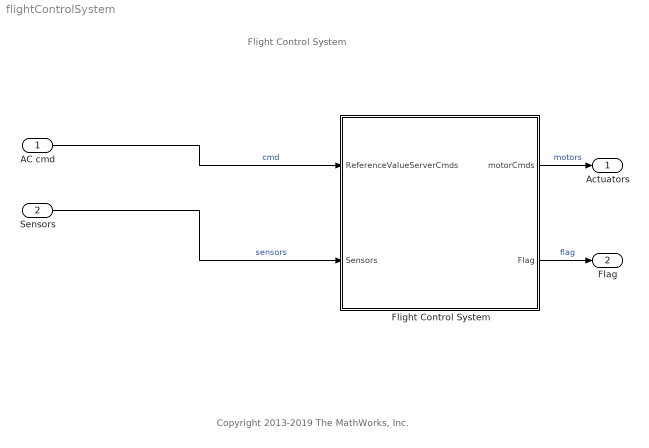
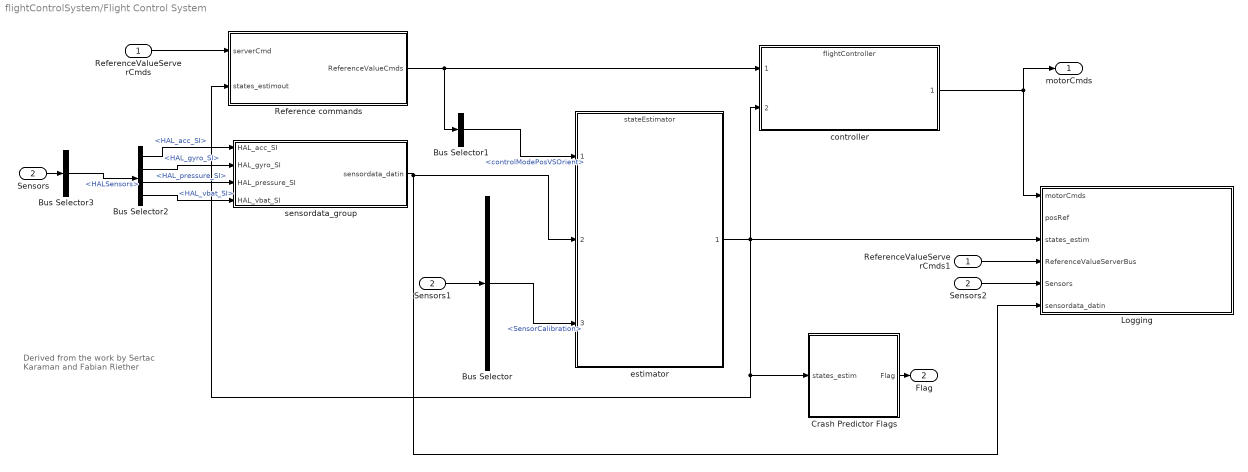
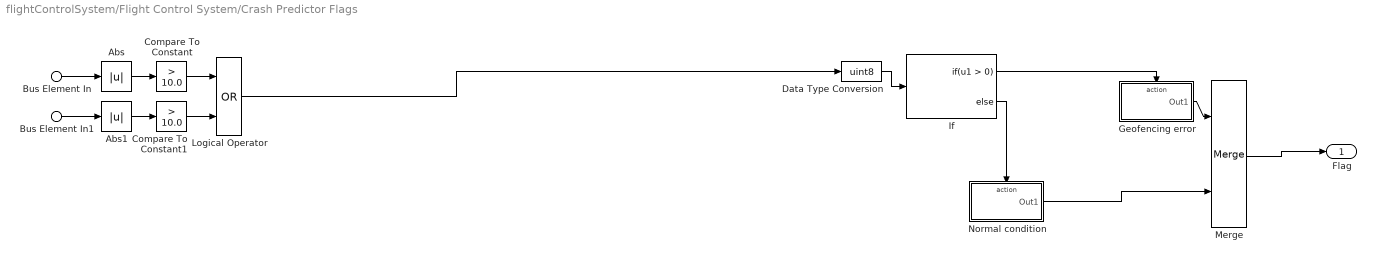
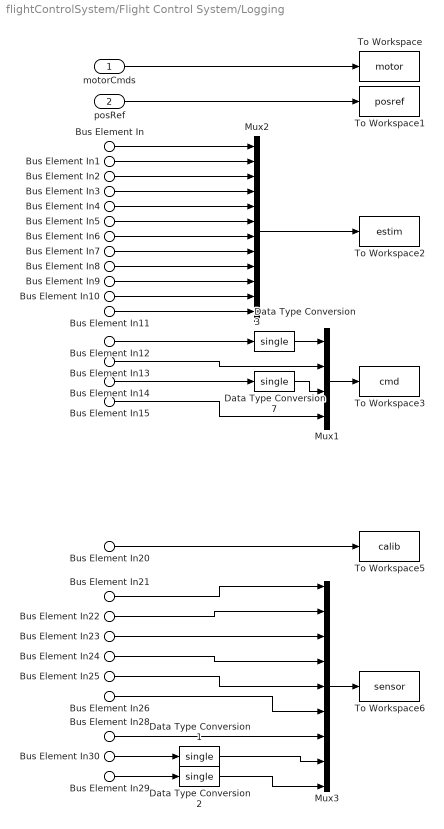
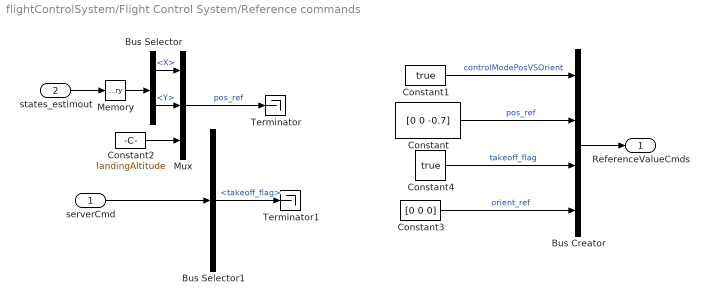
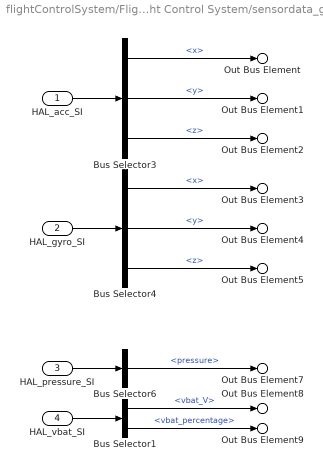
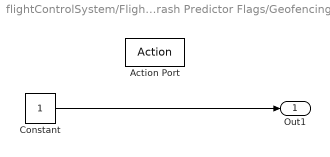
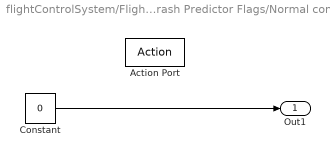
/*
 * flightControlSystem.c
 *
 * Academic License - for use in teaching, academic research, and meeting
 * course requirements at degree granting institutions only.  Not for
 * government, commercial, or other organizational use.
 *
 * Code generation for model "flightControlSystem".
 *
 * Model version              : 4.8
 * Simulink Coder version : 9.5 (R2021a) 14-Nov-2020
 * C source code generated on : Thu Jul  7 17:18:09 2022
 *
 * Target selection: grt.tlc
 * Note: GRT includes extra infrastructure and instrumentation for prototyping
 * Embedded hardware selection: ARM Compatible->ARM 9
 * Code generation objectives: Unspecified
 * Validation result: Not run
 */

#include "flightControlSystem.h"
#include "flightControlSystem_private.h"

const statesEstim_t flightControlSystem_rtZstatesEstim_t = {
  0.0F,                                /* X */
  0.0F,                                /* Y */
  0.0F,                                /* Z */
  0.0F,                                /* yaw */
  0.0F,                                /* pitch */
  0.0F,                                /* roll */
  0.0F,                                /* dx */
  0.0F,                                /* dy */
  0.0F,                                /* dz */
  0.0F,                                /* p */
  0.0F,                                /* q */
  0.0F                                 /* r */
} ;                                    /* statesEstim_t ground */

/* Exported block signals */
CommandBus cmd_inport;                 /* '<Root>/AC cmd' */
SensorsBus sensor_inport;              /* '<Root>/Sensors' */
real32_T motors_outport[4];            /* '<S1>/controller' */
uint8_T flag_outport;                  /* '<S2>/Merge' */

/* Block states (default storage) */
DW_flightControlSystem_T flightControlSystem_DW;

/* External outputs (root outports fed by signals with default storage) */
ExtY_flightControlSystem_T flightControlSystem_Y;

/* Real-time model */
static RT_MODEL_flightControlSystem_T flightControlSystem_M_;
RT_MODEL_flightControlSystem_T *const flightControlSystem_M =
  &flightControlSystem_M_;

/* System initialize for atomic system: '<S1>/Logging' */
void flightControlSystem_Logging_Init(RT_MODEL_flightControlSystem_T * const
  flightControlSystem_M, DW_Logging_flightControlSystem_T *localDW)
{
  /* SetupRuntimeResources for ToWorkspace: '<S3>/To Workspace1' */
  {
    static int_T rt_ToWksWidths[] = { 1 };

    static int_T rt_ToWksNumDimensions[] = { 1 };

    static int_T rt_ToWksDimensions[] = { 1 };

    static boolean_T rt_ToWksIsVarDims[] = { 0 };

    static void *rt_ToWksCurrSigDims[] = { (NULL) };

    static int_T rt_ToWksCurrSigDimsSize[] = { 4 };

    static BuiltInDTypeId rt_ToWksDataTypeIds[] = { SS_DOUBLE };

    static int_T rt_ToWksComplexSignals[] = { 0 };

    static int_T rt_ToWksFrameData[] = { 0 };

    static RTWPreprocessingFcnPtr rt_ToWksLoggingPreprocessingFcnPtrs[] = {
      (NULL)
    };

    static const char_T *rt_ToWksLabels[] = { "" };

    static RTWLogSignalInfo rt_ToWksSignalInfo = {
      1,
      rt_ToWksWidths,
      rt_ToWksNumDimensions,
      rt_ToWksDimensions,
      rt_ToWksIsVarDims,
      rt_ToWksCurrSigDims,
      rt_ToWksCurrSigDimsSize,
      rt_ToWksDataTypeIds,
      rt_ToWksComplexSignals,
      rt_ToWksFrameData,
      rt_ToWksLoggingPreprocessingFcnPtrs,

      { rt_ToWksLabels },
      (NULL),
      (NULL),
      (NULL),

      { (NULL) },

      { (NULL) },
      (NULL),
      (NULL)
    };

    static const char_T rt_ToWksBlockName[] =
      "flightControlSystem/Flight Control System/Logging/To Workspace1";
    localDW->ToWorkspace1_PWORK.LoggedData = rt_CreateStructLogVar(
      flightControlSystem_M->rtwLogInfo,
      0.0,
      rtmGetTFinal(flightControlSystem_M),
      flightControlSystem_M->Timing.stepSize0,
      (&rtmGetErrorStatus(flightControlSystem_M)),
      "posref",
      1,
      0,
      1,
      -2.0,
      &rt_ToWksSignalInfo,
      rt_ToWksBlockName);
    if (localDW->ToWorkspace1_PWORK.LoggedData == (NULL))
      return;
  }

  /* SetupRuntimeResources for ToWorkspace: '<S3>/To Workspace' */
  {
    static int_T rt_ToWksWidths[] = { 4 };

    static int_T rt_ToWksNumDimensions[] = { 1 };

    static int_T rt_ToWksDimensions[] = { 4 };

    static boolean_T rt_ToWksIsVarDims[] = { 0 };

    static void *rt_ToWksCurrSigDims[] = { (NULL) };

    static int_T rt_ToWksCurrSigDimsSize[] = { 4 };

    static BuiltInDTypeId rt_ToWksDataTypeIds[] = { SS_SINGLE };

    static int_T rt_ToWksComplexSignals[] = { 0 };

    static int_T rt_ToWksFrameData[] = { 0 };

    static RTWPreprocessingFcnPtr rt_ToWksLoggingPreprocessingFcnPtrs[] = {
      (NULL)
    };

    static const char_T *rt_ToWksLabels[] = { "" };

    static RTWLogSignalInfo rt_ToWksSignalInfo = {
      1,
      rt_ToWksWidths,
      rt_ToWksNumDimensions,
      rt_ToWksDimensions,
      rt_ToWksIsVarDims,
      rt_ToWksCurrSigDims,
      rt_ToWksCurrSigDimsSize,
      rt_ToWksDataTypeIds,
      rt_ToWksComplexSignals,
      rt_ToWksFrameData,
      rt_ToWksLoggingPreprocessingFcnPtrs,

      { rt_ToWksLabels },
      (NULL),
      (NULL),
      (NULL),

      { (NULL) },

      { (NULL) },
      (NULL),
      (NULL)
    };

    static const char_T rt_ToWksBlockName[] =
      "flightControlSystem/Flight Control System/Logging/To Workspace";
    localDW->ToWorkspace_PWORK.LoggedData = rt_CreateStructLogVar(
      flightControlSystem_M->rtwLogInfo,
      0.0,
      rtmGetTFinal(flightControlSystem_M),
      flightControlSystem_M->Timing.stepSize0,
      (&rtmGetErrorStatus(flightControlSystem_M)),
      "motor",
      1,
      0,
      1,
      0.005,
      &rt_ToWksSignalInfo,
      rt_ToWksBlockName);
    if (localDW->ToWorkspace_PWORK.LoggedData == (NULL))
      return;
  }

  /* SetupRuntimeResources for ToWorkspace: '<S3>/To Workspace2' */
  {
    static int_T rt_ToWksWidths[] = { 12 };

    static int_T rt_ToWksNumDimensions[] = { 1 };

    static int_T rt_ToWksDimensions[] = { 12 };

    static boolean_T rt_ToWksIsVarDims[] = { 0 };

    static void *rt_ToWksCurrSigDims[] = { (NULL) };

    static int_T rt_ToWksCurrSigDimsSize[] = { 4 };

    static BuiltInDTypeId rt_ToWksDataTypeIds[] = { SS_SINGLE };

    static int_T rt_ToWksComplexSignals[] = { 0 };

    static int_T rt_ToWksFrameData[] = { 0 };

    static RTWPreprocessingFcnPtr rt_ToWksLoggingPreprocessingFcnPtrs[] = {
      (NULL)
    };

    static const char_T *rt_ToWksLabels[] = { "" };

    static RTWLogSignalInfo rt_ToWksSignalInfo = {
      1,
      rt_ToWksWidths,
      rt_ToWksNumDimensions,
      rt_ToWksDimensions,
      rt_ToWksIsVarDims,
      rt_ToWksCurrSigDims,
      rt_ToWksCurrSigDimsSize,
      rt_ToWksDataTypeIds,
      rt_ToWksComplexSignals,
      rt_ToWksFrameData,
      rt_ToWksLoggingPreprocessingFcnPtrs,

      { rt_ToWksLabels },
      (NULL),
      (NULL),
      (NULL),

      { (NULL) },

      { (NULL) },
      (NULL),
      (NULL)
    };

    static const char_T rt_ToWksBlockName[] =
      "flightControlSystem/Flight Control System/Logging/To Workspace2";
    localDW->ToWorkspace2_PWORK.LoggedData = rt_CreateStructLogVar(
      flightControlSystem_M->rtwLogInfo,
      0.0,
      rtmGetTFinal(flightControlSystem_M),
      flightControlSystem_M->Timing.stepSize0,
      (&rtmGetErrorStatus(flightControlSystem_M)),
      "estim",
      1,
      0,
      1,
      0.005,
      &rt_ToWksSignalInfo,
      rt_ToWksBlockName);
    if (localDW->ToWorkspace2_PWORK.LoggedData == (NULL))
      return;
  }

  /* SetupRuntimeResources for ToWorkspace: '<S3>/To Workspace3' */
  {
    static int_T rt_ToWksWidths[] = { 8 };

    static int_T rt_ToWksNumDimensions[] = { 1 };

    static int_T rt_ToWksDimensions[] = { 8 };

    static boolean_T rt_ToWksIsVarDims[] = { 0 };

    static void *rt_ToWksCurrSigDims[] = { (NULL) };

    static int_T rt_ToWksCurrSigDimsSize[] = { 4 };

    static BuiltInDTypeId rt_ToWksDataTypeIds[] = { SS_SINGLE };

    static int_T rt_ToWksComplexSignals[] = { 0 };

    static int_T rt_ToWksFrameData[] = { 0 };

    static RTWPreprocessingFcnPtr rt_ToWksLoggingPreprocessingFcnPtrs[] = {
      (NULL)
    };

    static const char_T *rt_ToWksLabels[] = { "" };

    static RTWLogSignalInfo rt_ToWksSignalInfo = {
      1,
      rt_ToWksWidths,
      rt_ToWksNumDimensions,
      rt_ToWksDimensions,
      rt_ToWksIsVarDims,
      rt_ToWksCurrSigDims,
      rt_ToWksCurrSigDimsSize,
      rt_ToWksDataTypeIds,
      rt_ToWksComplexSignals,
      rt_ToWksFrameData,
      rt_ToWksLoggingPreprocessingFcnPtrs,

      { rt_ToWksLabels },
      (NULL),
      (NULL),
      (NULL),

      { (NULL) },

      { (NULL) },
      (NULL),
      (NULL)
    };

    static const char_T rt_ToWksBlockName[] =
      "flightControlSystem/Flight Control System/Logging/To Workspace3";
    localDW->ToWorkspace3_PWORK.LoggedData = rt_CreateStructLogVar(
      flightControlSystem_M->rtwLogInfo,
      0.0,
      rtmGetTFinal(flightControlSystem_M),
      flightControlSystem_M->Timing.stepSize0,
      (&rtmGetErrorStatus(flightControlSystem_M)),
      "cmd",
      1,
      0,
      1,
      0.005,
      &rt_ToWksSignalInfo,
      rt_ToWksBlockName);
    if (localDW->ToWorkspace3_PWORK.LoggedData == (NULL))
      return;
  }

  /* SetupRuntimeResources for ToWorkspace: '<S3>/To Workspace5' */
  {
    static int_T rt_ToWksWidths[] = { 8 };

    static int_T rt_ToWksNumDimensions[] = { 1 };

    static int_T rt_ToWksDimensions[] = { 8 };

    static boolean_T rt_ToWksIsVarDims[] = { 0 };

    static void *rt_ToWksCurrSigDims[] = { (NULL) };

    static int_T rt_ToWksCurrSigDimsSize[] = { 4 };

    static BuiltInDTypeId rt_ToWksDataTypeIds[] = { SS_SINGLE };

    static int_T rt_ToWksComplexSignals[] = { 0 };

    static int_T rt_ToWksFrameData[] = { 0 };

    static RTWPreprocessingFcnPtr rt_ToWksLoggingPreprocessingFcnPtrs[] = {
      (NULL)
    };

    static const char_T *rt_ToWksLabels[] = { "SensorCalibration" };

    static RTWLogSignalInfo rt_ToWksSignalInfo = {
      1,
      rt_ToWksWidths,
      rt_ToWksNumDimensions,
      rt_ToWksDimensions,
      rt_ToWksIsVarDims,
      rt_ToWksCurrSigDims,
      rt_ToWksCurrSigDimsSize,
      rt_ToWksDataTypeIds,
      rt_ToWksComplexSignals,
      rt_ToWksFrameData,
      rt_ToWksLoggingPreprocessingFcnPtrs,

      { rt_ToWksLabels },
      (NULL),
      (NULL),
      (NULL),

      { (NULL) },

      { (NULL) },
      (NULL),
      (NULL)
    };

    static const char_T rt_ToWksBlockName[] =
      "flightControlSystem/Flight Control System/Logging/To Workspace5";
    localDW->ToWorkspace5_PWORK.LoggedData = rt_CreateStructLogVar(
      flightControlSystem_M->rtwLogInfo,
      0.0,
      rtmGetTFinal(flightControlSystem_M),
      flightControlSystem_M->Timing.stepSize0,
      (&rtmGetErrorStatus(flightControlSystem_M)),
      "calib",
      1,
      0,
      100,
      0.005,
      &rt_ToWksSignalInfo,
      rt_ToWksBlockName);
    if (localDW->ToWorkspace5_PWORK.LoggedData == (NULL))
      return;
  }

  /* SetupRuntimeResources for ToWorkspace: '<S3>/To Workspace6' */
  {
    static int_T rt_ToWksWidths[] = { 9 };

    static int_T rt_ToWksNumDimensions[] = { 1 };

    static int_T rt_ToWksDimensions[] = { 9 };

    static boolean_T rt_ToWksIsVarDims[] = { 0 };

    static void *rt_ToWksCurrSigDims[] = { (NULL) };

    static int_T rt_ToWksCurrSigDimsSize[] = { 4 };

    static BuiltInDTypeId rt_ToWksDataTypeIds[] = { SS_SINGLE };

    static int_T rt_ToWksComplexSignals[] = { 0 };

    static int_T rt_ToWksFrameData[] = { 0 };

    static RTWPreprocessingFcnPtr rt_ToWksLoggingPreprocessingFcnPtrs[] = {
      (NULL)
    };

    static const char_T *rt_ToWksLabels[] = { "" };

    static RTWLogSignalInfo rt_ToWksSignalInfo = {
      1,
      rt_ToWksWidths,
      rt_ToWksNumDimensions,
      rt_ToWksDimensions,
      rt_ToWksIsVarDims,
      rt_ToWksCurrSigDims,
      rt_ToWksCurrSigDimsSize,
      rt_ToWksDataTypeIds,
      rt_ToWksComplexSignals,
      rt_ToWksFrameData,
      rt_ToWksLoggingPreprocessingFcnPtrs,

      { rt_ToWksLabels },
      (NULL),
      (NULL),
      (NULL),

      { (NULL) },

      { (NULL) },
      (NULL),
      (NULL)
    };

    static const char_T rt_ToWksBlockName[] =
      "flightControlSystem/Flight Control System/Logging/To Workspace6";
    localDW->ToWorkspace6_PWORK.LoggedData = rt_CreateStructLogVar(
      flightControlSystem_M->rtwLogInfo,
      0.0,
      rtmGetTFinal(flightControlSystem_M),
      flightControlSystem_M->Timing.stepSize0,
      (&rtmGetErrorStatus(flightControlSystem_M)),
      "sensor",
      1,
      0,
      1,
      0.005,
      &rt_ToWksSignalInfo,
      rt_ToWksBlockName);
    if (localDW->ToWorkspace6_PWORK.LoggedData == (NULL))
      return;
  }
}

/* Output and update for atomic system: '<S1>/Logging' */
void flightControlSystem_Logging(RT_MODEL_flightControlSystem_T * const
  flightControlSystem_M, const real32_T rtu_motorCmds[4], const statesEstim_t
  *rtu_states_estim_Inport_3, const CommandBus
  *rtu_ReferenceValueServerBus_Inport_4, const SensorsBus *rtu_Sensors_Inport_5,
  real32_T rtu_sensordata_datin_Inport_6, uint32_T
  rtu_sensordata_datin_Inport_6_d, real32_T rtu_sensordata_datin_Inport_6_e,
  real32_T rtu_sensordata_datin_Inport_6_c, real32_T
  rtu_sensordata_datin_Inport_6_cg, real32_T rtu_sensordata_datin_Inport_6_i,
  real32_T rtu_sensordata_datin_Inport_6_h, real32_T
  rtu_sensordata_datin_Inport_6_b, real32_T rtu_sensordata_datin_Inport_6_dz,
  DW_Logging_flightControlSystem_T *localDW)
{
  /* local block i/o variables */
  real32_T rtb_DataTypeConversion1;
  real32_T rtb_DataTypeConversion2;
  int32_T i;
  real32_T rtb_TmpSignalConversionAtToWorkspace2Inport1[12];
  real32_T rtb_TmpSignalConversionAtToWorkspace6Inport1[9];
  real32_T rtb_SensorCalibration[8];
  real32_T rtb_TmpSignalConversionAtToWorkspace3Inport1[8];

  /* ToWorkspace: '<S3>/To Workspace' */
  {
    double locTime = flightControlSystem_M->Timing.taskTime0;
    ;
    rt_UpdateStructLogVar((StructLogVar *)localDW->ToWorkspace_PWORK.LoggedData,
                          &locTime, &rtu_motorCmds[0]);
  }

  /* SignalConversion generated from: '<S3>/To Workspace2' incorporates:
   *  SignalConversion generated from: '<S3>/states_estim_BusSelector'
   */
  rtb_TmpSignalConversionAtToWorkspace2Inport1[0] = rtu_states_estim_Inport_3->X;
  rtb_TmpSignalConversionAtToWorkspace2Inport1[1] = rtu_states_estim_Inport_3->Y;
  rtb_TmpSignalConversionAtToWorkspace2Inport1[2] = rtu_states_estim_Inport_3->Z;
  rtb_TmpSignalConversionAtToWorkspace2Inport1[3] =
    rtu_states_estim_Inport_3->yaw;
  rtb_TmpSignalConversionAtToWorkspace2Inport1[4] =
    rtu_states_estim_Inport_3->pitch;
  rtb_TmpSignalConversionAtToWorkspace2Inport1[5] =
    rtu_states_estim_Inport_3->roll;
  rtb_TmpSignalConversionAtToWorkspace2Inport1[6] =
    rtu_states_estim_Inport_3->dx;
  rtb_TmpSignalConversionAtToWorkspace2Inport1[7] =
    rtu_states_estim_Inport_3->dy;
  rtb_TmpSignalConversionAtToWorkspace2Inport1[8] =
    rtu_states_estim_Inport_3->dz;
  rtb_TmpSignalConversionAtToWorkspace2Inport1[9] = rtu_states_estim_Inport_3->p;
  rtb_TmpSignalConversionAtToWorkspace2Inport1[10] =
    rtu_states_estim_Inport_3->q;
  rtb_TmpSignalConversionAtToWorkspace2Inport1[11] =
    rtu_states_estim_Inport_3->r;

  /* ToWorkspace: '<S3>/To Workspace2' */
  {
    double locTime = flightControlSystem_M->Timing.taskTime0;
    ;
    rt_UpdateStructLogVar((StructLogVar *)localDW->ToWorkspace2_PWORK.LoggedData,
                          &locTime,
                          &rtb_TmpSignalConversionAtToWorkspace2Inport1[0]);
  }

  /* SignalConversion generated from: '<S3>/To Workspace3' incorporates:
   *  DataTypeConversion: '<S3>/Data Type Conversion3'
   *  DataTypeConversion: '<S3>/Data Type Conversion7'
   *  SignalConversion generated from: '<S3>/ReferenceValueServerBus_BusSelector'
   */
  rtb_TmpSignalConversionAtToWorkspace3Inport1[0] =
    rtu_ReferenceValueServerBus_Inport_4->controlModePosVSOrient;
  rtb_TmpSignalConversionAtToWorkspace3Inport1[4] =
    rtu_ReferenceValueServerBus_Inport_4->takeoff_flag;
  rtb_TmpSignalConversionAtToWorkspace3Inport1[1] =
    rtu_ReferenceValueServerBus_Inport_4->pos_ref[0];
  rtb_TmpSignalConversionAtToWorkspace3Inport1[5] =
    rtu_ReferenceValueServerBus_Inport_4->orient_ref[0];
  rtb_TmpSignalConversionAtToWorkspace3Inport1[2] =
    rtu_ReferenceValueServerBus_Inport_4->pos_ref[1];
  rtb_TmpSignalConversionAtToWorkspace3Inport1[6] =
    rtu_ReferenceValueServerBus_Inport_4->orient_ref[1];
  rtb_TmpSignalConversionAtToWorkspace3Inport1[3] =
    rtu_ReferenceValueServerBus_Inport_4->pos_ref[2];
  rtb_TmpSignalConversionAtToWorkspace3Inport1[7] =
    rtu_ReferenceValueServerBus_Inport_4->orient_ref[2];

  /* ToWorkspace: '<S3>/To Workspace3' */
  {
    double locTime = flightControlSystem_M->Timing.taskTime0;
    ;
    rt_UpdateStructLogVar((StructLogVar *)localDW->ToWorkspace3_PWORK.LoggedData,
                          &locTime,
                          &rtb_TmpSignalConversionAtToWorkspace3Inport1[0]);
  }

  /* SignalConversion generated from: '<S3>/Sensors_BusSelector' */
  for (i = 0; i < 8; i++) {
    rtb_SensorCalibration[i] = rtu_Sensors_Inport_5->SensorCalibration[i];
  }

  /* End of SignalConversion generated from: '<S3>/Sensors_BusSelector' */

  /* ToWorkspace: '<S3>/To Workspace5' */
  {
    double locTime = flightControlSystem_M->Timing.taskTime0;
    ;
    rt_UpdateStructLogVar((StructLogVar *)localDW->ToWorkspace5_PWORK.LoggedData,
                          &locTime, &rtb_SensorCalibration[0]);
  }

  /* DataTypeConversion: '<S3>/Data Type Conversion1' */
  rtb_DataTypeConversion1 = rtu_sensordata_datin_Inport_6;

  /* DataTypeConversion: '<S3>/Data Type Conversion2' */
  rtb_DataTypeConversion2 = (real32_T)rtu_sensordata_datin_Inport_6_d;

  /* SignalConversion generated from: '<S3>/To Workspace6' */
  rtb_TmpSignalConversionAtToWorkspace6Inport1[0] =
    rtu_sensordata_datin_Inport_6_e;
  rtb_TmpSignalConversionAtToWorkspace6Inport1[1] =
    rtu_sensordata_datin_Inport_6_c;
  rtb_TmpSignalConversionAtToWorkspace6Inport1[2] =
    rtu_sensordata_datin_Inport_6_cg;
  rtb_TmpSignalConversionAtToWorkspace6Inport1[3] =
    rtu_sensordata_datin_Inport_6_i;
  rtb_TmpSignalConversionAtToWorkspace6Inport1[4] =
    rtu_sensordata_datin_Inport_6_h;
  rtb_TmpSignalConversionAtToWorkspace6Inport1[5] =
    rtu_sensordata_datin_Inport_6_b;
  rtb_TmpSignalConversionAtToWorkspace6Inport1[6] =
    rtu_sensordata_datin_Inport_6_dz;
  rtb_TmpSignalConversionAtToWorkspace6Inport1[7] = rtb_DataTypeConversion1;
  rtb_TmpSignalConversionAtToWorkspace6Inport1[8] = rtb_DataTypeConversion2;

  /* ToWorkspace: '<S3>/To Workspace6' */
  {
    double locTime = flightControlSystem_M->Timing.taskTime0;
    ;
    rt_UpdateStructLogVar((StructLogVar *)localDW->ToWorkspace6_PWORK.LoggedData,
                          &locTime,
                          &rtb_TmpSignalConversionAtToWorkspace6Inport1[0]);
  }
}

/* ConstCode for atomic system: '<S1>/Logging' */
void flightControlSystem_Logging_Const(real_T rtu_posRef,
  DW_Logging_flightControlSystem_T *localDW)
{
  /* ConstCode for ToWorkspace: '<S3>/To Workspace1' */
  {
    real_T u[1];

    {
      int32_T i;
      for (i = 0; i < 1; i++) {
        u[i] = rtu_posRef;
      }
    }

    {
      double locTime = 0.0;
      ;
      rt_UpdateStructLogVar((StructLogVar *)
                            localDW->ToWorkspace1_PWORK.LoggedData, &locTime, u);
    }
  }
}

/* System initialize for atomic system: '<Root>/Flight Control System' */
void flightControlSystem_FlightControlSystem_Init(RT_MODEL_flightControlSystem_T
  * const flightControlSystem_M, DW_FlightControlSystem_flightControlSystem_T
  *localDW)
{
  /* InitializeConditions for Memory: '<S4>/Memory' */
  localDW->Memory_PreviousInput = flightControlSystem_rtZstatesEstim_t;

  /* SystemInitialize for ModelReference: '<S1>/estimator' */
  stateEstimator_Init();

  /* SystemInitialize for ModelReference: '<S1>/controller' */
  flightController_Init();

  /* SystemInitialize for Atomic SubSystem: '<S1>/Logging' */
  flightControlSystem_Logging_Init(flightControlSystem_M, &localDW->Logging);

  /* End of SystemInitialize for SubSystem: '<S1>/Logging' */

  /* SystemInitialize for Merge: '<S2>/Merge' */
  flag_outport = ((uint8_T)0U);
}

/* Output and update for atomic system: '<Root>/Flight Control System' */
void flightControlSystem_FlightControlSystem(RT_MODEL_flightControlSystem_T *
  const flightControlSystem_M, const CommandBus *rtu_ReferenceValueServerCmds,
  const SensorsBus *rtu_Sensors, DW_FlightControlSystem_flightControlSystem_T
  *localDW)
{
  /* local block i/o variables */
  statesEstim_t rtb_estimator;
  statesEstim_t rtb_Memory;
  uint32_T rtb_vbat_percentage;
  real32_T rtb_x;
  real32_T rtb_y;
  real32_T rtb_z;
  real32_T rtb_x_c;
  real32_T rtb_y_n;
  real32_T rtb_z_p;
  real32_T rtb_pressure;
  real32_T rtb_vbat_V;
  CommandBus rtb_BusCreator;
  sensordata_t rtb_BusConversion_InsertedFor_estimator_at_inport_1_BusCreator1;

  /* BusCreator: '<S4>/Bus Creator' incorporates:
   *  Constant: '<S4>/Constant'
   *  Constant: '<S4>/Constant1'
   *  Constant: '<S4>/Constant3'
   *  Constant: '<S4>/Constant4'
   */
  rtb_BusCreator.controlModePosVSOrient = true;
  rtb_BusCreator.takeoff_flag = true;
  rtb_BusCreator.pos_ref[0] = 0.0F;
  rtb_BusCreator.orient_ref[0] = 0.0F;
  rtb_BusCreator.pos_ref[1] = 0.0F;
  rtb_BusCreator.orient_ref[1] = 0.0F;
  rtb_BusCreator.pos_ref[2] = (-0.7F);
  rtb_BusCreator.orient_ref[2] = 0.0F;

  /* SignalConversion generated from: '<S5>/Bus Selector3' */
  rtb_x = rtu_Sensors->HALSensors.HAL_acc_SI.x;

  /* SignalConversion generated from: '<S5>/Bus Selector3' */
  rtb_y = rtu_Sensors->HALSensors.HAL_acc_SI.y;

  /* SignalConversion generated from: '<S5>/Bus Selector3' */
  rtb_z = rtu_Sensors->HALSensors.HAL_acc_SI.z;

  /* SignalConversion generated from: '<S5>/Bus Selector4' */
  rtb_x_c = rtu_Sensors->HALSensors.HAL_gyro_SI.x;

  /* SignalConversion generated from: '<S5>/Bus Selector4' */
  rtb_y_n = rtu_Sensors->HALSensors.HAL_gyro_SI.y;

  /* SignalConversion generated from: '<S5>/Bus Selector4' */
  rtb_z_p = rtu_Sensors->HALSensors.HAL_gyro_SI.z;

  /* SignalConversion generated from: '<S5>/Bus Selector6' */
  rtb_pressure = rtu_Sensors->HALSensors.HAL_pressure_SI.pressure;

  /* SignalConversion generated from: '<S5>/Bus Selector1' */
  rtb_vbat_V = rtu_Sensors->HALSensors.HAL_vbat_SI.vbat_V;

  /* SignalConversion generated from: '<S5>/Bus Selector1' */
  rtb_vbat_percentage = rtu_Sensors->HALSensors.HAL_vbat_SI.vbat_percentage;

  /* BusCreator generated from: '<S1>/estimator' */
  rtb_BusConversion_InsertedFor_estimator_at_inport_1_BusCreator1.ddx = rtb_x;
  rtb_BusConversion_InsertedFor_estimator_at_inport_1_BusCreator1.ddy = rtb_y;
  rtb_BusConversion_InsertedFor_estimator_at_inport_1_BusCreator1.ddz = rtb_z;
  rtb_BusConversion_InsertedFor_estimator_at_inport_1_BusCreator1.p = rtb_x_c;
  rtb_BusConversion_InsertedFor_estimator_at_inport_1_BusCreator1.q = rtb_y_n;
  rtb_BusConversion_InsertedFor_estimator_at_inport_1_BusCreator1.r = rtb_z_p;
  rtb_BusConversion_InsertedFor_estimator_at_inport_1_BusCreator1.prs =
    rtb_pressure;
  rtb_BusConversion_InsertedFor_estimator_at_inport_1_BusCreator1.vbat_V =
    rtb_vbat_V;
  rtb_BusConversion_InsertedFor_estimator_at_inport_1_BusCreator1.vbat_percentage
    = rtb_vbat_percentage;

  /* ModelReference: '<S1>/estimator' */
  stateEstimator(&rtb_BusCreator.controlModePosVSOrient,
                 &rtb_BusConversion_InsertedFor_estimator_at_inport_1_BusCreator1,
                 &rtu_Sensors->SensorCalibration[0], &rtb_estimator);

  /* ModelReference: '<S1>/controller' */
  flightController(&rtb_BusCreator, &rtb_estimator, &motors_outport[0]);

  /* Outputs for Atomic SubSystem: '<S1>/Logging' */
  flightControlSystem_Logging(flightControlSystem_M, motors_outport,
    &rtb_estimator, rtu_ReferenceValueServerCmds, rtu_Sensors, rtb_vbat_V,
    rtb_vbat_percentage, rtb_x, rtb_y, rtb_z, rtb_x_c, rtb_y_n, rtb_z_p,
    rtb_pressure, &localDW->Logging);

  /* End of Outputs for SubSystem: '<S1>/Logging' */

  /* If: '<S2>/If' incorporates:
   *  Abs: '<S2>/Abs'
   *  Abs: '<S2>/Abs1'
   *  Constant: '<S6>/Constant'
   *  Constant: '<S7>/Constant'
   *  Logic: '<S2>/Logical Operator'
   *  RelationalOperator: '<S6>/Compare'
   *  RelationalOperator: '<S7>/Compare'
   */
  if (((real32_T)fabs(rtb_estimator.X) > 10.0F) || ((real32_T)fabs
       (rtb_estimator.Y) > 10.0F)) {
    /* Outputs for IfAction SubSystem: '<S2>/Geofencing error' incorporates:
     *  ActionPort: '<S8>/Action Port'
     */
    /* Merge: '<S2>/Merge' incorporates:
     *  Constant: '<S8>/Constant'
     *  SignalConversion generated from: '<S8>/Out1'
     */
    flag_outport = ((uint8_T)1U);

    /* End of Outputs for SubSystem: '<S2>/Geofencing error' */
  } else {
    /* Outputs for IfAction SubSystem: '<S2>/Normal condition' incorporates:
     *  ActionPort: '<S9>/Action Port'
     */
    /* Merge: '<S2>/Merge' incorporates:
     *  Constant: '<S9>/Constant'
     *  SignalConversion generated from: '<S9>/Out1'
     */
    flag_outport = ((uint8_T)0U);

    /* End of Outputs for SubSystem: '<S2>/Normal condition' */
  }

  /* End of If: '<S2>/If' */

  /* Memory: '<S4>/Memory' */
  rtb_Memory = localDW->Memory_PreviousInput;

  /* Update for Memory: '<S4>/Memory' */
  localDW->Memory_PreviousInput = rtb_estimator;
}

/* ConstCode for atomic system: '<Root>/Flight Control System' */
void flightControlSystem_FlightControlSystem_Const
  (DW_FlightControlSystem_flightControlSystem_T *localDW)
{
  /* ConstCode for Atomic SubSystem: '<S1>/Logging' */
  flightControlSystem_Logging_Const(0.0, &localDW->Logging);

  /* End of ConstCode for SubSystem: '<S1>/Logging' */
}

/* Model step function */
void flightControlSystem_step(void)
{
  /* Outputs for Atomic SubSystem: '<Root>/Flight Control System' */

  /* Inport: '<Root>/AC cmd' incorporates:
   *  Inport: '<Root>/Sensors'
   */
  flightControlSystem_FlightControlSystem(flightControlSystem_M, &cmd_inport,
    &sensor_inport, &flightControlSystem_DW.FlightControlSystem);

  /* End of Outputs for SubSystem: '<Root>/Flight Control System' */

  /* Outport: '<Root>/Actuators' */
  flightControlSystem_Y.Actuators[0] = motors_outport[0];
  flightControlSystem_Y.Actuators[1] = motors_outport[1];
  flightControlSystem_Y.Actuators[2] = motors_outport[2];
  flightControlSystem_Y.Actuators[3] = motors_outport[3];

  /* Outport: '<Root>/Flag' */
  flightControlSystem_Y.Flag = flag_outport;

  /* Matfile logging */
  rt_UpdateTXYLogVars(flightControlSystem_M->rtwLogInfo,
                      (&flightControlSystem_M->Timing.taskTime0));

  /* signal main to stop simulation */
  {                                    /* Sample time: [0.005s, 0.0s] */
    if ((rtmGetTFinal(flightControlSystem_M)!=-1) &&
        !((rtmGetTFinal(flightControlSystem_M)-
           flightControlSystem_M->Timing.taskTime0) >
          flightControlSystem_M->Timing.taskTime0 * (DBL_EPSILON))) {
      rtmSetErrorStatus(flightControlSystem_M, "Simulation finished");
    }
  }

  /* Update absolute time for base rate */
  /* The "clockTick0" counts the number of times the code of this task has
   * been executed. The absolute time is the multiplication of "clockTick0"
   * and "Timing.stepSize0". Size of "clockTick0" ensures timer will not
   * overflow during the application lifespan selected.
   * Timer of this task consists of two 32 bit unsigned integers.
   * The two integers represent the low bits Timing.clockTick0 and the high bits
   * Timing.clockTickH0. When the low bit overflows to 0, the high bits increment.
   */
  if (!(++flightControlSystem_M->Timing.clockTick0)) {
    ++flightControlSystem_M->Timing.clockTickH0;
  }

  flightControlSystem_M->Timing.taskTime0 =
    flightControlSystem_M->Timing.clockTick0 *
    flightControlSystem_M->Timing.stepSize0 +
    flightControlSystem_M->Timing.clockTickH0 *
    flightControlSystem_M->Timing.stepSize0 * 4294967296.0;
}
